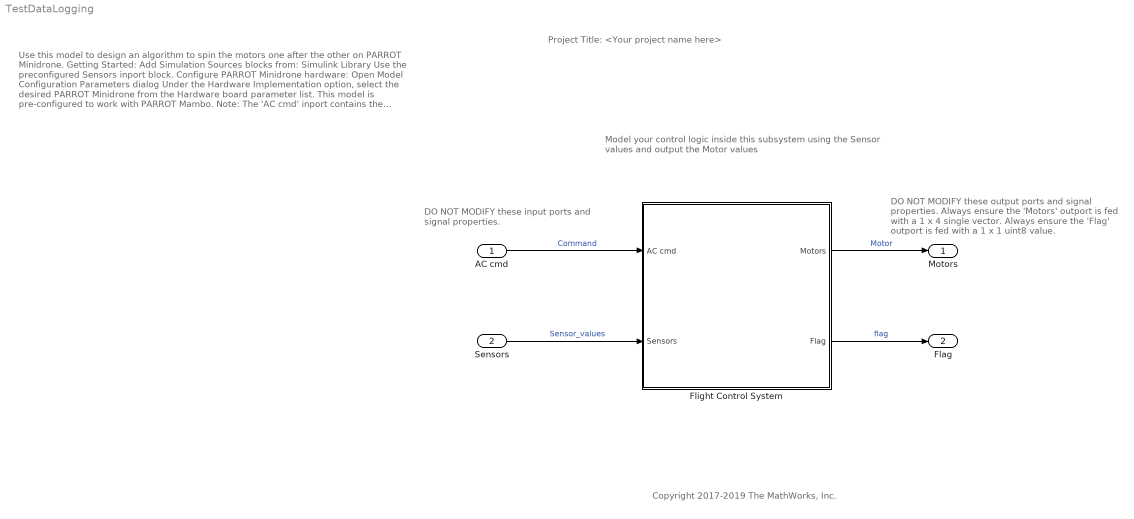
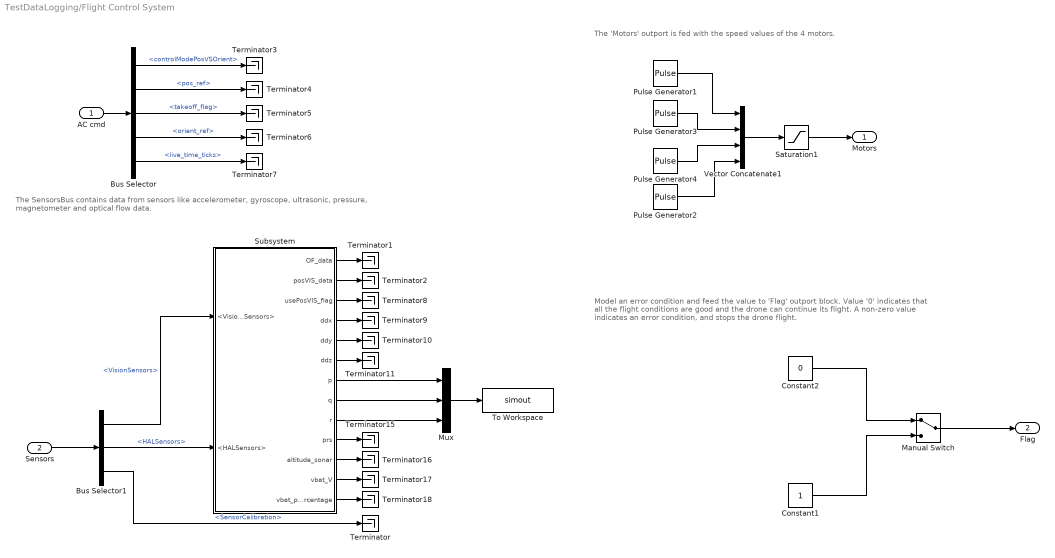
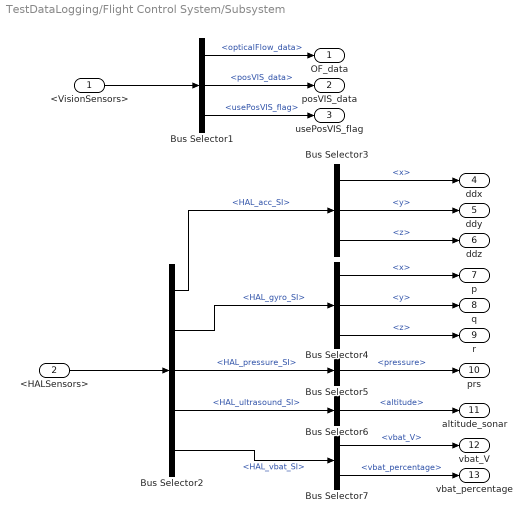
/*
 * TestDataLogging.c
 *
 * Academic License - for use in teaching, academic research, and meeting
 * course requirements at degree granting institutions only.  Not for
 * government, commercial, or other organizational use.
 *
 * Code generation for model "TestDataLogging".
 *
 * Model version              : 1.2
 * Simulink Coder version : 9.2 (R2019b) 18-Jul-2019
 * C source code generated on : Thu Jul  9 16:01:33 2020
 *
 * Target selection: ert.tlc
 * Note: GRT includes extra infrastructure and instrumentation for prototyping
 * Embedded hardware selection: ARM Compatible->ARM 9
 * Code generation objectives: Unspecified
 * Validation result: Not run
 */

#include "TestDataLogging.h"
#include "TestDataLogging_private.h"

/* Exported block signals */
CommandBus cmd_inport;                 /* '<Root>/AC cmd' */
SensorsBus sensor_inport;              /* '<Root>/Sensors' */
real32_T motors_outport[4];            /* '<S1>/Saturation1' */
uint8_T flag_outport;                  /* '<S1>/Manual Switch' */

/* Block states (default storage) */
DW_TestDataLogging_T TestDataLogging_DW;

/* External outputs (root outports fed by signals with default storage) */
ExtY_TestDataLogging_T TestDataLogging_Y;

/* Real-time model */
RT_MODEL_TestDataLogging_T TestDataLogging_M_;
RT_MODEL_TestDataLogging_T *const TestDataLogging_M = &TestDataLogging_M_;

/* Model step function */
void TestDataLogging_step(void)
{
  /* local block i/o variables */
  real32_T rtb_TmpSignalConversionAtToWork[3];
  real_T rtb_VectorConcatenate1_idx_0;
  real_T rtb_VectorConcatenate1_idx_1;
  real_T rtb_VectorConcatenate1_idx_2;
  real_T rtb_VectorConcatenate1_idx_3;

  /* DiscretePulseGenerator: '<S1>/Pulse Generator1' */
  rtb_VectorConcatenate1_idx_0 = (TestDataLogging_DW.clockTickCounter <
    TestDataLogging_P.PulseGenerator1_Duty) &&
    (TestDataLogging_DW.clockTickCounter >= 0) ?
    TestDataLogging_P.PulseGenerator1_Amp : 0.0;
  if (TestDataLogging_DW.clockTickCounter >=
      TestDataLogging_P.PulseGenerator1_Period - 1.0) {
    TestDataLogging_DW.clockTickCounter = 0;
  } else {
    TestDataLogging_DW.clockTickCounter++;
  }

  /* End of DiscretePulseGenerator: '<S1>/Pulse Generator1' */

  /* DiscretePulseGenerator: '<S1>/Pulse Generator3' */
  rtb_VectorConcatenate1_idx_1 = (TestDataLogging_DW.clockTickCounter_h <
    TestDataLogging_P.PulseGenerator3_Duty) &&
    (TestDataLogging_DW.clockTickCounter_h >= 0) ?
    TestDataLogging_P.PulseGenerator3_Amp : 0.0;
  if (TestDataLogging_DW.clockTickCounter_h >=
      TestDataLogging_P.PulseGenerator3_Period - 1.0) {
    TestDataLogging_DW.clockTickCounter_h = 0;
  } else {
    TestDataLogging_DW.clockTickCounter_h++;
  }

  /* End of DiscretePulseGenerator: '<S1>/Pulse Generator3' */

  /* DiscretePulseGenerator: '<S1>/Pulse Generator4' */
  rtb_VectorConcatenate1_idx_2 = (TestDataLogging_DW.clockTickCounter_a <
    TestDataLogging_P.PulseGenerator4_Duty) &&
    (TestDataLogging_DW.clockTickCounter_a >= 0) ?
    TestDataLogging_P.PulseGenerator4_Amp : 0.0;
  if (TestDataLogging_DW.clockTickCounter_a >=
      TestDataLogging_P.PulseGenerator4_Period - 1.0) {
    TestDataLogging_DW.clockTickCounter_a = 0;
  } else {
    TestDataLogging_DW.clockTickCounter_a++;
  }

  /* End of DiscretePulseGenerator: '<S1>/Pulse Generator4' */

  /* DiscretePulseGenerator: '<S1>/Pulse Generator2' */
  rtb_VectorConcatenate1_idx_3 = (TestDataLogging_DW.clockTickCounter_n <
    TestDataLogging_P.PulseGenerator2_Duty) &&
    (TestDataLogging_DW.clockTickCounter_n >= 0) ?
    TestDataLogging_P.PulseGenerator2_Amp : 0.0;
  if (TestDataLogging_DW.clockTickCounter_n >=
      TestDataLogging_P.PulseGenerator2_Period - 1.0) {
    TestDataLogging_DW.clockTickCounter_n = 0;
  } else {
    TestDataLogging_DW.clockTickCounter_n++;
  }

  /* End of DiscretePulseGenerator: '<S1>/Pulse Generator2' */

  /* Saturate: '<S1>/Saturation1' */
  if (rtb_VectorConcatenate1_idx_0 > TestDataLogging_P.Saturation1_UpperSat) {
    motors_outport[0] = TestDataLogging_P.Saturation1_UpperSat;
  } else if (rtb_VectorConcatenate1_idx_0 <
             TestDataLogging_P.Saturation1_LowerSat) {
    motors_outport[0] = TestDataLogging_P.Saturation1_LowerSat;
  } else {
    motors_outport[0] = (real32_T)rtb_VectorConcatenate1_idx_0;
  }

  /* Outport: '<Root>/Motors' */
  TestDataLogging_Y.Motors[0] = motors_outport[0];

  /* Saturate: '<S1>/Saturation1' */
  if (rtb_VectorConcatenate1_idx_1 > TestDataLogging_P.Saturation1_UpperSat) {
    motors_outport[1] = TestDataLogging_P.Saturation1_UpperSat;
  } else if (rtb_VectorConcatenate1_idx_1 <
             TestDataLogging_P.Saturation1_LowerSat) {
    motors_outport[1] = TestDataLogging_P.Saturation1_LowerSat;
  } else {
    motors_outport[1] = (real32_T)rtb_VectorConcatenate1_idx_1;
  }

  /* Outport: '<Root>/Motors' */
  TestDataLogging_Y.Motors[1] = motors_outport[1];

  /* Saturate: '<S1>/Saturation1' */
  if (rtb_VectorConcatenate1_idx_2 > TestDataLogging_P.Saturation1_UpperSat) {
    motors_outport[2] = TestDataLogging_P.Saturation1_UpperSat;
  } else if (rtb_VectorConcatenate1_idx_2 <
             TestDataLogging_P.Saturation1_LowerSat) {
    motors_outport[2] = TestDataLogging_P.Saturation1_LowerSat;
  } else {
    motors_outport[2] = (real32_T)rtb_VectorConcatenate1_idx_2;
  }

  /* Outport: '<Root>/Motors' */
  TestDataLogging_Y.Motors[2] = motors_outport[2];

  /* Saturate: '<S1>/Saturation1' */
  if (rtb_VectorConcatenate1_idx_3 > TestDataLogging_P.Saturation1_UpperSat) {
    motors_outport[3] = TestDataLogging_P.Saturation1_UpperSat;
  } else if (rtb_VectorConcatenate1_idx_3 <
             TestDataLogging_P.Saturation1_LowerSat) {
    motors_outport[3] = TestDataLogging_P.Saturation1_LowerSat;
  } else {
    motors_outport[3] = (real32_T)rtb_VectorConcatenate1_idx_3;
  }

  /* Outport: '<Root>/Motors' */
  TestDataLogging_Y.Motors[3] = motors_outport[3];

  /* ManualSwitch: '<S1>/Manual Switch' incorporates:
   *  Constant: '<S1>/Constant1'
   *  Constant: '<S1>/Constant2'
   */
  if (TestDataLogging_P.ManualSwitch_CurrentSetting == 1) {
    flag_outport = TestDataLogging_P.Constant2_Value;
  } else {
    flag_outport = TestDataLogging_P.Constant1_Value;
  }

  /* End of ManualSwitch: '<S1>/Manual Switch' */

  /* Outport: '<Root>/Flag' */
  TestDataLogging_Y.Flag = flag_outport;

  /* SignalConversion generated from: '<S1>/To Workspace' incorporates:
   *  Inport: '<Root>/Sensors'
   *  SignalConversion generated from: '<S2>/Bus Selector4'
   * */
  rtb_TmpSignalConversionAtToWork[0] = sensor_inport.HALSensors.HAL_gyro_SI.x;
  rtb_TmpSignalConversionAtToWork[1] = sensor_inport.HALSensors.HAL_gyro_SI.y;
  rtb_TmpSignalConversionAtToWork[2] = sensor_inport.HALSensors.HAL_gyro_SI.z;

  /* ToWorkspace: '<S1>/To Workspace' */
  {
    double locTime = TestDataLogging_M->Timing.taskTime0;
    ;
    rt_UpdateStructLogVar((StructLogVar *)
                          TestDataLogging_DW.ToWorkspace_PWORK.LoggedData,
                          &locTime, &rtb_TmpSignalConversionAtToWork[0]);
  }

  /* Matfile logging */
  rt_UpdateTXYLogVars(TestDataLogging_M->rtwLogInfo,
                      (&TestDataLogging_M->Timing.taskTime0));

  /* signal main to stop simulation */
  {                                    /* Sample time: [0.005s, 0.0s] */
    if ((rtmGetTFinal(TestDataLogging_M)!=-1) &&
        !((rtmGetTFinal(TestDataLogging_M)-TestDataLogging_M->Timing.taskTime0) >
          TestDataLogging_M->Timing.taskTime0 * (DBL_EPSILON))) {
      rtmSetErrorStatus(TestDataLogging_M, "Simulation finished");
    }
  }

  /* Update absolute time for base rate */
  /* The "clockTick0" counts the number of times the code of this task has
   * been executed. The absolute time is the multiplication of "clockTick0"
   * and "Timing.stepSize0". Size of "clockTick0" ensures timer will not
   * overflow during the application lifespan selected.
   * Timer of this task consists of two 32 bit unsigned integers.
   * The two integers represent the low bits Timing.clockTick0 and the high bits
   * Timing.clockTickH0. When the low bit overflows to 0, the high bits increment.
   */
  if (!(++TestDataLogging_M->Timing.clockTick0)) {
    ++TestDataLogging_M->Timing.clockTickH0;
  }

  TestDataLogging_M->Timing.taskTime0 = TestDataLogging_M->Timing.clockTick0 *
    TestDataLogging_M->Timing.stepSize0 + TestDataLogging_M->Timing.clockTickH0 *
    TestDataLogging_M->Timing.stepSize0 * 4294967296.0;
}
